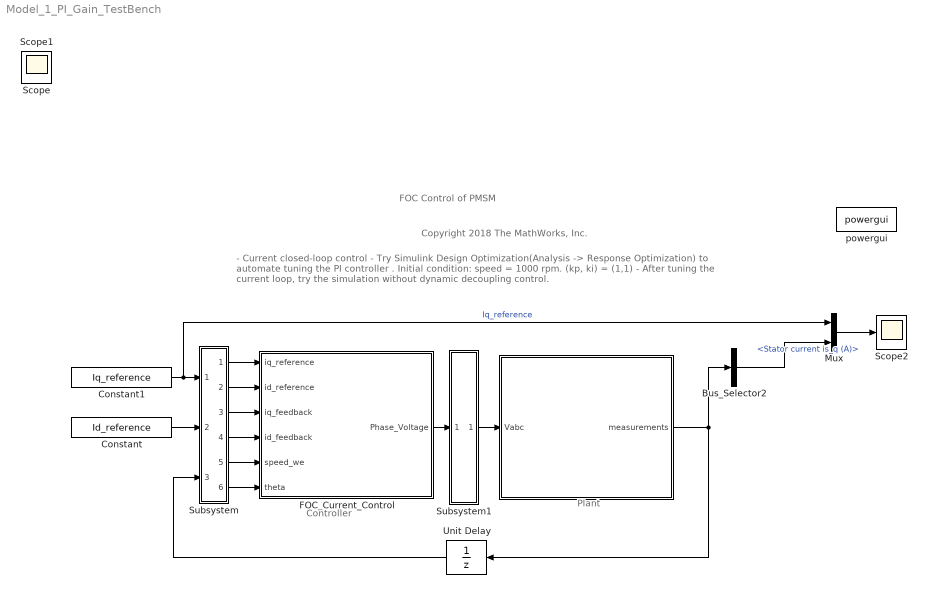
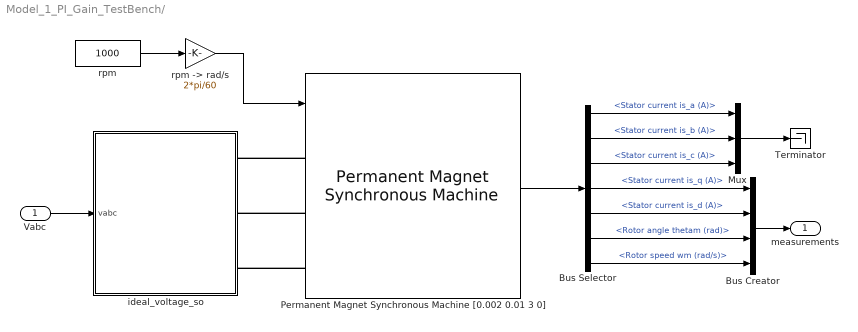
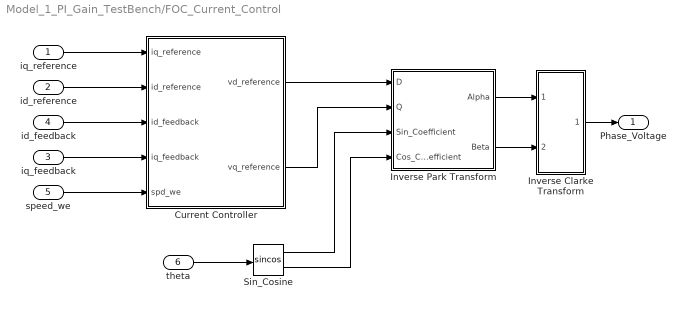
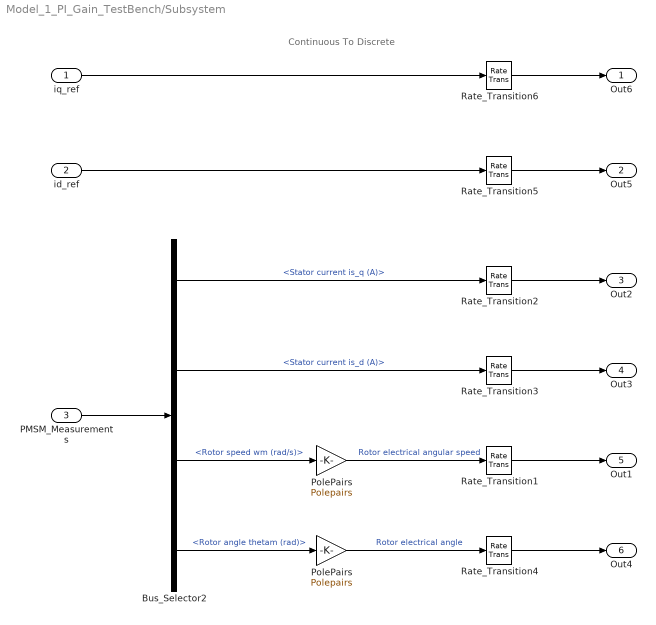
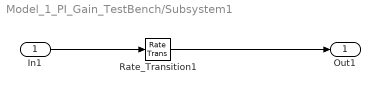
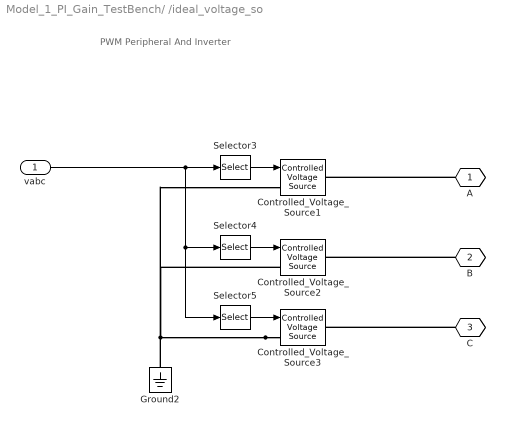
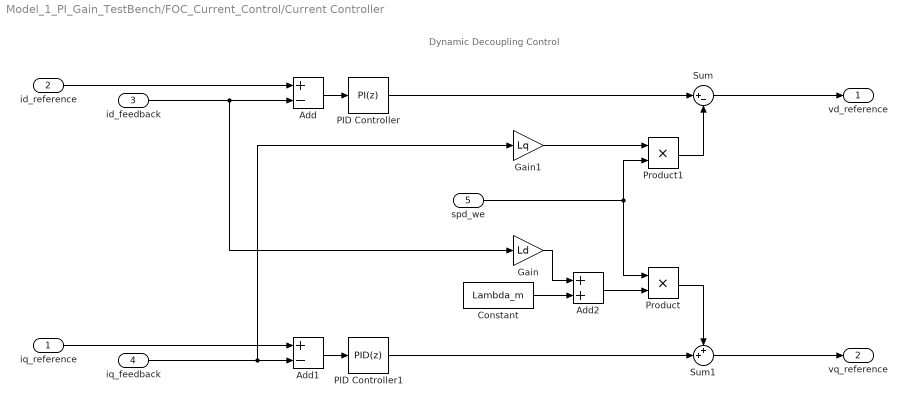
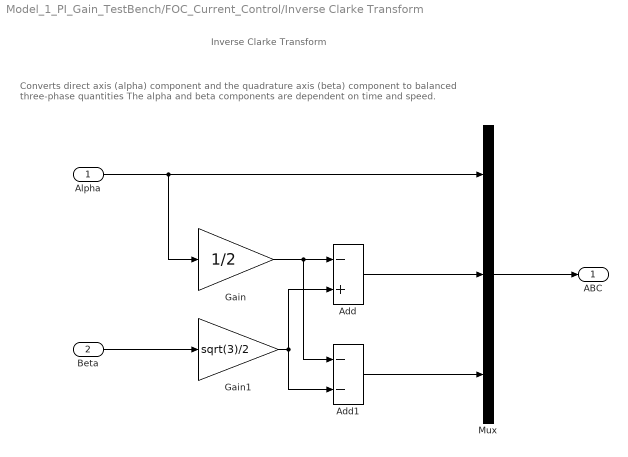
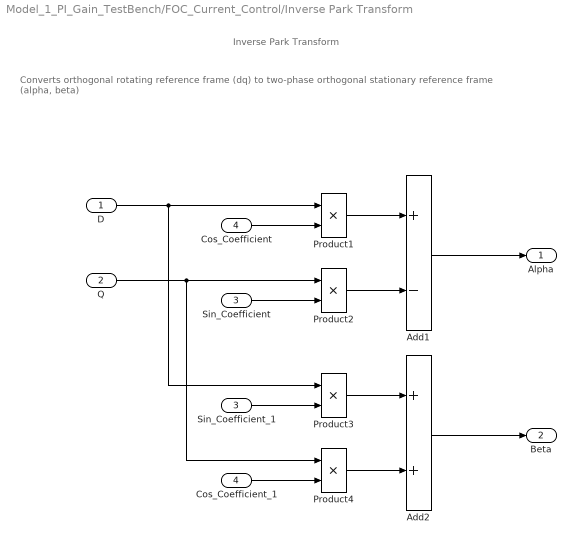
/*
 * Academic License - for use in teaching, academic research, and meeting
 * course requirements at degree granting institutions only.  Not for
 * government, commercial, or other organizational use.
 *
 * File: Model_1_PI_Gain_TestBench.c
 *
 * Code generated for Simulink model 'Model_1_PI_Gain_TestBench'.
 *
 * Model version                  : 1.65
 * Simulink Coder version         : 9.0 (R2018b) 24-May-2018
 * C/C++ source code generated on : Fri Nov  1 14:54:51 2024
 *
 * Target selection: ert.tlc
 * Embedded hardware selection: ARM Compatible->ARM Cortex
 * Emulation hardware selection:
 *    Differs from embedded hardware (Custom Processor->MATLAB Host Computer)
 * Code generation objectives:
 *    1. Execution efficiency
 *    2. RAM efficiency
 * Validation result: Not run
 */

#include "Model_1_PI_Gain_TestBench.h"
#include <math.h>
#include <stdlib.h>
#ifndef CodeFormat
#define CodeFormat                     S-Function
#else
#undef CodeFormat
#define CodeFormat                     S-Function
#endif

#ifndef S_FUNCTION_NAME
#define S_FUNCTION_NAME                simulink_only_sfcn
#else
#undef S_FUNCTION_NAME
#define S_FUNCTION_NAME                simulink_only_sfcn
#endif

#ifndef S_FUNCTION_LEVEL
#define S_FUNCTION_LEVEL               2
#else
#undef S_FUNCTION_LEVEL
#define S_FUNCTION_LEVEL               2
#endif

#ifndef RTW_GENERATED_S_FUNCTION
#define RTW_GENERATED_S_FUNCTION
#endif

#ifndef rtmGetDataMapInfo
# define rtmGetDataMapInfo(rtm)        NULL
#endif

#ifndef rtmSetDataMapInfo
# define rtmSetDataMapInfo(rtm, val)
#endif

#if !defined(RTW_SFUNCTION_DEFINES)
#define RTW_SFUNCTION_DEFINES
#ifndef _RTW_COMMON_DEFINES_
#define _RTW_COMMON_DEFINES_
#endif
#endif

/* Block signals and states (default storage) */
DW rtDW;

/* Real-time model */
RT_MODEL rtM_;
RT_MODEL *const rtM = &rtM_;

/* Model step function for TID0 */
void Model_1_PI_Gain_TestBench_step0(void) /* Sample time: [1.0E-5s, 0.0s] */
{
  real_T rtb_DiscreteTimeIntegrator;
  real_T rtb_DiscreteTimeIntegrator_b;
  real_T rtb_Fcn;
  real_T rtb_uLq;
  real_T rtb_ElementaryMath_o1;
  real_T rtb_ElementaryMath_o2;
  real_T rtb_Fcn_tmp;

  /* Update the flag to indicate when data transfers from
   *  Sample time: [1.0E-5s, 0.0s] to Sample time: [0.0001s, 0.0s]  */
  (rtM->Timing.RateInteraction.TID0_1)++;
  if ((rtM->Timing.RateInteraction.TID0_1) > 9) {
    rtM->Timing.RateInteraction.TID0_1 = 0;
  }

  /* Trigonometry: '<S12>/Elementary Math' incorporates:
   *  DiscreteIntegrator: '<S10>/Discrete-Time Integrator1'
   */
  rtb_ElementaryMath_o1 = sin(rtDW.DiscreteTimeIntegrator1_DSTATE);
  rtb_ElementaryMath_o2 = cos(rtDW.DiscreteTimeIntegrator1_DSTATE);

  /* DiscreteIntegrator: '<S17>/Discrete-Time Integrator' */
  rtb_DiscreteTimeIntegrator = rtDW.DiscreteTimeIntegrator_DSTATE;

  /* DiscreteIntegrator: '<S16>/Discrete-Time Integrator' */
  rtb_DiscreteTimeIntegrator_b = rtDW.DiscreteTimeIntegrator_DSTATE_d;

  /* Fcn: '<S14>/Fcn' */
  rtDW.Fcn = rtb_DiscreteTimeIntegrator * rtb_ElementaryMath_o2 +
    rtb_DiscreteTimeIntegrator_b * rtb_ElementaryMath_o1;

  /* Fcn: '<S14>/Fcn1' */
  rtDW.Fcn1 = ((-rtb_DiscreteTimeIntegrator - 1.7320508075688772 *
                rtb_DiscreteTimeIntegrator_b) * rtb_ElementaryMath_o2 +
               (1.7320508075688772 * rtb_DiscreteTimeIntegrator -
                rtb_DiscreteTimeIntegrator_b) * rtb_ElementaryMath_o1) * 0.5;

  /* S-Function (sfun_spssw_discc): '<S218>/State-Space' */

  /* S-Function block: <S218>/State-Space */
  {
    real_T accum;

    /*
     * Compute outputs:
     * ---------------
     */
    real_T *Ds = (real_T*)rtDW.StateSpace_PWORK.DS;
    accum = 0.0;
    accum += *(Ds++) * rtDW.Fcn;
    accum += *(Ds++) * rtDW.Fcn1;
    accum += *(Ds++) * rtDW.Add1;
    accum += *(Ds++) * rtDW.Add;
    accum += *(Ds++) * rtDW.Add1_g;
    rtDW.StateSpace[0] = accum;
    accum = 0.0;
    accum += *(Ds++) * rtDW.Fcn;
    accum += *(Ds++) * rtDW.Fcn1;
    accum += *(Ds++) * rtDW.Add1;
    accum += *(Ds++) * rtDW.Add;
    accum += *(Ds++) * rtDW.Add1_g;
    rtDW.StateSpace[1] = accum;
  }

  /* Fcn: '<S12>/Fcn2' incorporates:
   *  Fcn: '<S12>/Fcn3'
   */
  rtb_Fcn_tmp = 2.0 * rtDW.StateSpace[0] + rtDW.StateSpace[1];
  rtb_Fcn = (rtb_Fcn_tmp * rtb_ElementaryMath_o2 + 1.7320508075688772 *
             rtDW.StateSpace[1] * rtb_ElementaryMath_o1) * 0.33333333333333331;

  /* Gain: '<S17>/1//Lq' */
  rtb_uLq = 312.5 * rtb_Fcn;

  /* Fcn: '<S12>/Fcn3' */
  rtb_Fcn = (rtb_Fcn_tmp * rtb_ElementaryMath_o1 + -1.7320508075688772 *
             rtDW.StateSpace[1] * rtb_ElementaryMath_o2) * 0.33333333333333331;

  /* Gain: '<S16>/1//Ld' */
  rtb_ElementaryMath_o1 = 588.23529411764707 * rtb_Fcn;

  /* Fcn: '<S10>/Fcn' incorporates:
   *  DiscreteIntegrator: '<S10>/Discrete-Time Integrator1'
   */
  rtb_Fcn = (rtDW.DiscreteTimeIntegrator1_DSTATE - 1.5707963267948966) / 4.0;

  /* UnitDelay: '<Root>/Unit Delay' */
  if (rtM->Timing.RateInteraction.TID0_1 == 1) {
    rtDW.TmpRTBAtUnitDelay_2Inport1 = rtb_DiscreteTimeIntegrator_b;
    rtDW.TmpRTBAtUnitDelay_1Inport1 = rtb_DiscreteTimeIntegrator;
    rtDW.TmpRTBAtUnitDelay_3Inport1 = rtb_Fcn;
  }

  /* End of UnitDelay: '<Root>/Unit Delay' */

  /* Update for DiscreteIntegrator: '<S10>/Discrete-Time Integrator1' */
  rtDW.DiscreteTimeIntegrator1_DSTATE += 0.0041887902047863914;

  /* Update for DiscreteIntegrator: '<S17>/Discrete-Time Integrator' incorporates:
   *  Gain: '<S17>/Ld//Lq'
   *  Gain: '<S17>/R//Lq'
   *  Product: '<S17>/Product1'
   *  Sum: '<S17>/Sum1'
   */
  rtDW.DiscreteTimeIntegrator_DSTATE += (((rtb_uLq - 6.25 *
    rtb_DiscreteTimeIntegrator) - rtb_DiscreteTimeIntegrator_b *
    418.87902047863906 * 0.53125) - 28863.382504856221) * 1.0E-5;

  /* Update for DiscreteIntegrator: '<S16>/Discrete-Time Integrator' incorporates:
   *  Gain: '<S16>/Lq//Ld'
   *  Gain: '<S16>/R//Ld'
   *  Product: '<S16>/Product'
   *  Sum: '<S16>/Sum'
   */
  rtDW.DiscreteTimeIntegrator_DSTATE_d += ((rtb_ElementaryMath_o1 -
    11.764705882352942 * rtb_DiscreteTimeIntegrator_b) + 418.87902047863906 *
    rtb_DiscreteTimeIntegrator * 1.8823529411764708) * 1.0E-5;
}

/* Model step function for TID1 */
void Model_1_PI_Gain_TestBench_step1(void) /* Sample time: [0.0001s, 0.0s] */
{
  real_T rtb_Add;
  real_T rtb_Integrator_i;
  real_T rtb_Rotorelectricalangle;
  real_T rtb_Sum_l;
  real_T rtb_Add1;
  real_T rtb_FilterCoefficient;
  real_T rtb_Sin_Cosine_o1;
  real_T rtb_Gain_g;

  /* Sum: '<S21>/Add' incorporates:
   *  Constant: '<Root>/Constant'
   *  UnitDelay: '<Root>/Unit Delay'
   */
  rtb_Add = -50.0 - rtDW.UnitDelay_2_DSTATE;

  /* Gain: '<S3>/PolePairs ' incorporates:
   *  UnitDelay: '<Root>/Unit Delay'
   */
  rtb_Integrator_i = 4.0 * rtDW.UnitDelay_4_DSTATE;

  /* Sum: '<S21>/Sum' incorporates:
   *  Constant: '<Root>/Constant'
   *  DiscreteIntegrator: '<S80>/Integrator'
   *  Gain: '<S21>/Gain1'
   *  Product: '<S21>/Product1'
   *  Sum: '<S109>/Sum'
   *  Sum: '<S21>/Add'
   *  UnitDelay: '<Root>/Unit Delay'
   */
  rtb_Sum_l = ((-50.0 - rtDW.UnitDelay_2_DSTATE) + rtDW.Integrator_DSTATE) -
    0.0032 * rtDW.UnitDelay_1_DSTATE * rtb_Integrator_i;

  /* Gain: '<S3>/PolePairs' incorporates:
   *  UnitDelay: '<Root>/Unit Delay'
   */
  rtb_Rotorelectricalangle = 4.0 * rtDW.UnitDelay_3_DSTATE;

  /* Trigonometry: '<S2>/Sin_Cosine' */
  rtb_Sin_Cosine_o1 = sin(rtb_Rotorelectricalangle);
  rtb_Rotorelectricalangle = cos(rtb_Rotorelectricalangle);

  /* Sum: '<S21>/Add1' incorporates:
   *  Constant: '<Root>/Constant1'
   *  UnitDelay: '<Root>/Unit Delay'
   */
  rtb_Add1 = 100.0 - rtDW.UnitDelay_1_DSTATE;

  /* Gain: '<S186>/Filter Coefficient' incorporates:
   *  Constant: '<Root>/Constant1'
   *  DiscreteIntegrator: '<S158>/Filter'
   *  Gain: '<S153>/Derivative Gain'
   *  Sum: '<S158>/SumD'
   *  Sum: '<S21>/Add1'
   *  UnitDelay: '<Root>/Unit Delay'
   */
  rtb_FilterCoefficient = ((100.0 - rtDW.UnitDelay_1_DSTATE) * 0.0 -
    rtDW.Filter_DSTATE) * 100.0;

  /* Sum: '<S21>/Sum1' incorporates:
   *  Constant: '<Root>/Constant1'
   *  Constant: '<S21>/Constant'
   *  DiscreteIntegrator: '<S176>/Integrator'
   *  Gain: '<S21>/Gain'
   *  Product: '<S21>/Product'
   *  Sum: '<S206>/Sum'
   *  Sum: '<S21>/Add1'
   *  Sum: '<S21>/Add2'
   *  UnitDelay: '<Root>/Unit Delay'
   */
  rtb_Integrator_i = (0.0017 * rtDW.UnitDelay_2_DSTATE + 0.2205) *
    rtb_Integrator_i + (((100.0 - rtDW.UnitDelay_1_DSTATE) +
    rtDW.Integrator_DSTATE_a) + rtb_FilterCoefficient);

  /* Sum: '<S23>/Add1' incorporates:
   *  Product: '<S23>/Product1'
   *  Product: '<S23>/Product2'
   */
  rtDW.Add1 = rtb_Sum_l * rtb_Rotorelectricalangle - rtb_Integrator_i *
    rtb_Sin_Cosine_o1;

  /* Gain: '<S22>/Gain' */
  rtb_Gain_g = 0.5 * rtDW.Add1;

  /* Gain: '<S22>/Gain1' incorporates:
   *  Product: '<S23>/Product3'
   *  Product: '<S23>/Product4'
   *  Sum: '<S23>/Add2'
   */
  rtb_Integrator_i = (rtb_Sum_l * rtb_Sin_Cosine_o1 + rtb_Integrator_i *
                      rtb_Rotorelectricalangle) * 0.8660254037844386;

  /* Sum: '<S22>/Add' */
  rtDW.Add = rtb_Integrator_i - rtb_Gain_g;

  /* Sum: '<S22>/Add1' */
  rtDW.Add1_g = (0.0 - rtb_Gain_g) - rtb_Integrator_i;

  /* Update for UnitDelay: '<Root>/Unit Delay' */
  rtDW.UnitDelay_2_DSTATE = rtDW.TmpRTBAtUnitDelay_2Inport1;

  /* Update for DiscreteIntegrator: '<S80>/Integrator' */
  rtDW.Integrator_DSTATE += 0.0001 * rtb_Add;

  /* Update for UnitDelay: '<Root>/Unit Delay' */
  rtDW.UnitDelay_1_DSTATE = rtDW.TmpRTBAtUnitDelay_1Inport1;
  rtDW.UnitDelay_4_DSTATE = 104.71975511965977;
  rtDW.UnitDelay_3_DSTATE = rtDW.TmpRTBAtUnitDelay_3Inport1;

  /* Update for DiscreteIntegrator: '<S176>/Integrator' */
  rtDW.Integrator_DSTATE_a += 0.0001 * rtb_Add1;

  /* Update for DiscreteIntegrator: '<S158>/Filter' */
  rtDW.Filter_DSTATE += 0.0001 * rtb_FilterCoefficient;
}
